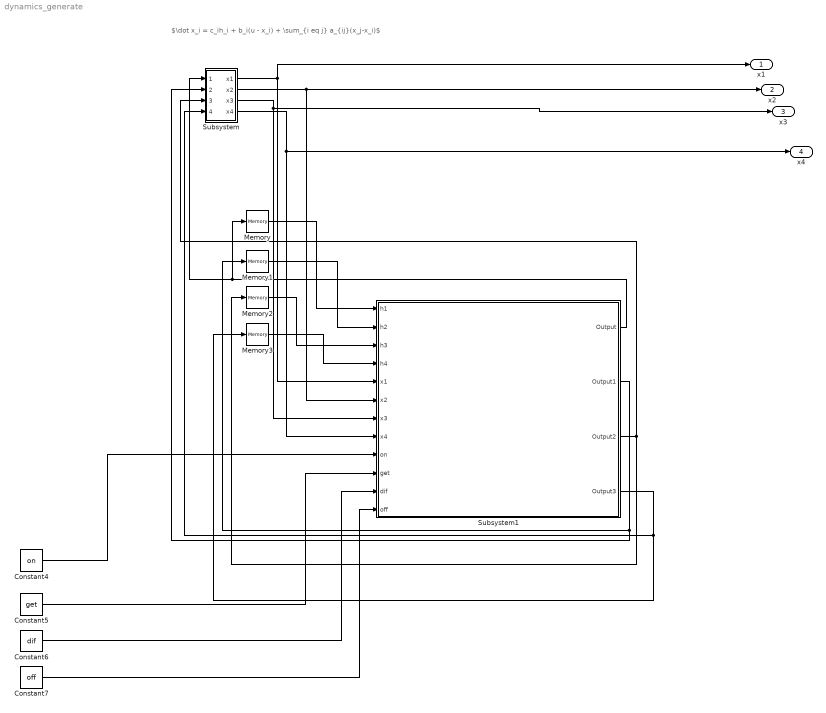
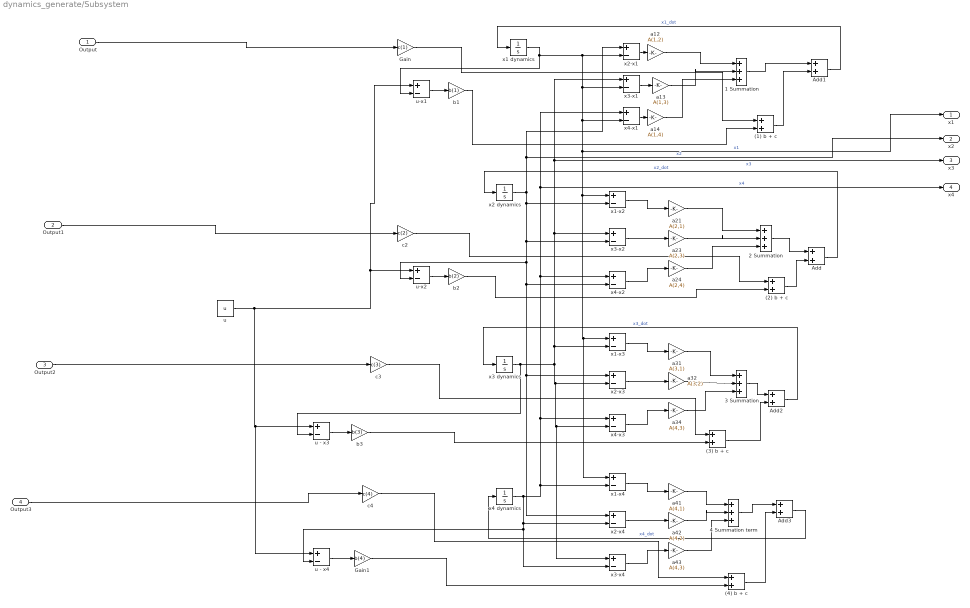
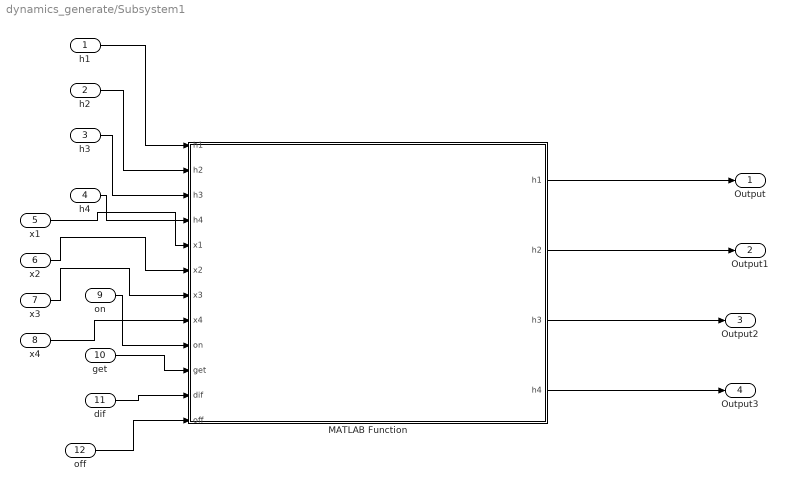
== matlab function dynamics_generate/Subsystem1/MATLAB Function ==
function [h1,h2,h3,h4] = SelectHeaters(h1,h2,h3,h4,x1,x2,x3,x4,on,get,dif,off)
x = [x1,x2,x3,x4];
h = [h1,h2,h3,h4];
persistent locations;
hnew = zeros(1,4);
if isempty(locations)
    locations = h;
end
ind = find(locations == 1);

biggestdiff = 0;
newind = ind;

for i = 1:1:4
    if x(i) <= get(i) && x(ind(1)) - x(i) >= dif(i)
        curdiff = on(i)-x(i);
        if curdiff > biggestdiff
            biggestdiff = curdiff;
            newind(1) = i;
        end
    end
end

locations(newind(1)) = 1;
if x(newind(1)) <= on(newind(1)) && x(newind(1)) < off(newind(1))
    hnew(newind(1)) = 1;
end

biggestdiff = 0;

for i = 1:1:4
    if x(i) <= get(i) && x(ind(1)) - x(i) >= dif(i) && i ~= newind(1)
        curdiff = on(i)-x(i);
        if curdiff > biggestdiff
            biggestdiff = curdiff;
            newind(2) = i;
        end
    end
end

locations(newind(2)) = 1;
if x(newind(2)) <= on(newind(2)) && x(newind(2)) < off(newind(2))
    hnew(newind(2)) = 1;
end

h1 = hnew(1);
h2 = hnew(2);
h3 = hnew(3);
h4 = hnew(4);

/*
 * dynamics_generate.c
 *
 * Academic License - for use in teaching, academic research, and meeting
 * course requirements at degree granting institutions only.  Not for
 * government, commercial, or other organizational use.
 *
 * Code generation for model "dynamics_generate".
 *
 * Model version              : 1.8
 * Simulink Coder version : 9.7 (R2022a) 13-Nov-2021
 * C source code generated on : Sat Dec 10 17:25:09 2022
 *
 * Target selection: grt.tlc
 * Note: GRT includes extra infrastructure and instrumentation for prototyping
 * Embedded hardware selection: Intel->x86-64 (Windows64)
 * Code generation objectives: Unspecified
 * Validation result: Not run
 */

#include "dynamics_generate.h"
#include <string.h>
#include <stdio.h>
#include "rtwtypes.h"
#include "dynamics_generate_private.h"
#include "rt_nonfinite.h"
#include <stdlib.h>
#include <errno.h>

#define MAX_DIGITS 12

/* Block signals (default storage) */
B_dynamics_generate_T dynamics_generate_B;

/* Continuous states */
X_dynamics_generate_T dynamics_generate_X;

/* Block states (default storage) */
DW_dynamics_generate_T dynamics_generate_DW;

/* External outputs (root outports fed by signals with default storage) */
ExtY_dynamics_generate_T dynamics_generate_Y;

/* Real-time model */
static RT_MODEL_dynamics_generate_T dynamics_generate_M_;
RT_MODEL_dynamics_generate_T *const dynamics_generate_M = &dynamics_generate_M_;

//function definitions
int get_u_input(char* uval);
int get_h_input(char* hval);
void getIntegerFromStdin(int *inputInteger);

/*
 * This function updates continuous states using the ODE3 fixed-step
 * solver algorithm
 */
static void rt_ertODEUpdateContinuousStates(RTWSolverInfo *si )
{
  /* Solver Matrices */
  static const real_T rt_ODE3_A[3] = {
    1.0/2.0, 3.0/4.0, 1.0
  };

  static const real_T rt_ODE3_B[3][3] = {
    { 1.0/2.0, 0.0, 0.0 },

    { 0.0, 3.0/4.0, 0.0 },

    { 2.0/9.0, 1.0/3.0, 4.0/9.0 }
  };

  time_T t = rtsiGetT(si);
  time_T tnew = rtsiGetSolverStopTime(si);
  time_T h = rtsiGetStepSize(si);
  real_T *x = rtsiGetContStates(si);
  ODE3_IntgData *id = (ODE3_IntgData *)rtsiGetSolverData(si);
  real_T *y = id->y;
  real_T *f0 = id->f[0];
  real_T *f1 = id->f[1];
  real_T *f2 = id->f[2];
  real_T hB[3];
  int_T i;
  int_T nXc = 4;
  rtsiSetSimTimeStep(si,MINOR_TIME_STEP);

  /* Save the state values at time t in y, we'll use x as ynew. */
  (void) memcpy(y, x,
                (uint_T)nXc*sizeof(real_T));

  /* Assumes that rtsiSetT and ModelOutputs are up-to-date */
  /* f0 = f(t,y) */
  rtsiSetdX(si, f0);
  dynamics_generate_derivatives();

  /* f(:,2) = feval(odefile, t + hA(1), y + f*hB(:,1), args(:)(*)); */
  hB[0] = h * rt_ODE3_B[0][0];
  for (i = 0; i < nXc; i++) {
    x[i] = y[i] + (f0[i]*hB[0]);
  }

  rtsiSetT(si, t + h*rt_ODE3_A[0]);
  rtsiSetdX(si, f1);
  dynamics_generate_step();
  dynamics_generate_derivatives();

  /* f(:,3) = feval(odefile, t + hA(2), y + f*hB(:,2), args(:)(*)); */
  for (i = 0; i <= 1; i++) {
    hB[i] = h * rt_ODE3_B[1][i];
  }

  for (i = 0; i < nXc; i++) {
    x[i] = y[i] + (f0[i]*hB[0] + f1[i]*hB[1]);
  }

  rtsiSetT(si, t + h*rt_ODE3_A[1]);
  rtsiSetdX(si, f2);
  dynamics_generate_step();
  dynamics_generate_derivatives();

  /* tnew = t + hA(3);
     ynew = y + f*hB(:,3); */
  for (i = 0; i <= 2; i++) {
    hB[i] = h * rt_ODE3_B[2][i];
  }

  for (i = 0; i < nXc; i++) {
    x[i] = y[i] + (f0[i]*hB[0] + f1[i]*hB[1] + f2[i]*hB[2]);
  }

  rtsiSetT(si, tnew);
  rtsiSetSimTimeStep(si,MAJOR_TIME_STEP);
}

/* Model step function */
void dynamics_generate_step(void)
{
  real_T x[4];
  int8_T hnew[4];
  int8_T ii_data[4];
  int8_T newind_data[4];

  //static variable for the counter timestep
  static int count = 0;
  count++;

  if (rtmIsMajorTimeStep(dynamics_generate_M)) {
    /* set solver stop time */
    if (!(dynamics_generate_M->Timing.clockTick0+1)) {
      rtsiSetSolverStopTime(&dynamics_generate_M->solverInfo,
                            ((dynamics_generate_M->Timing.clockTickH0 + 1) *
        dynamics_generate_M->Timing.stepSize0 * 4294967296.0));
    } else {
      rtsiSetSolverStopTime(&dynamics_generate_M->solverInfo,
                            ((dynamics_generate_M->Timing.clockTick0 + 1) *
        dynamics_generate_M->Timing.stepSize0 +
        dynamics_generate_M->Timing.clockTickH0 *
        dynamics_generate_M->Timing.stepSize0 * 4294967296.0));
    }
  }                                    /* end MajorTimeStep */

  /* Update absolute time of base rate at minor time step */
  if (rtmIsMinorTimeStep(dynamics_generate_M)) {
    dynamics_generate_M->Timing.t[0] = rtsiGetT(&dynamics_generate_M->solverInfo);
  }

        //outputs are below (not all are outputs, just the ones that say Outport)
          //print them out here

  /* Integrator: '<S1>/x1 dynamics' */
  dynamics_generate_B.x1 = dynamics_generate_X.x1dynamics_CSTATE;

  /* Outport: '<Root>/x1' */
  dynamics_generate_Y.x1 = dynamics_generate_B.x1;

  /* Integrator: '<S1>/x2 dynamics' */
  dynamics_generate_B.x2 = dynamics_generate_X.x2dynamics_CSTATE;

  /* Outport: '<Root>/x2' */
  dynamics_generate_Y.x2 = dynamics_generate_B.x2;

  /* Integrator: '<S1>/x3 dynamics' */
  dynamics_generate_B.x3 = dynamics_generate_X.x3dynamics_CSTATE;

  /* Outport: '<Root>/x3' */
  dynamics_generate_Y.x3 = dynamics_generate_B.x3;

  /* Integrator: '<S1>/x4 dynamics' */
  dynamics_generate_B.x4 = dynamics_generate_X.x4dynamics_CSTATE;

  /* Outport: '<Root>/x4' */
  dynamics_generate_Y.x4 = dynamics_generate_B.x4;

  //**************
  //print outputs here
  //**************

  printf("**********TIMESTEP %d********\n", count);
  //std::cout << "**********TIMESTEP**********" << std::endl;
  printf("Room 1 Temp: %f\n", dynamics_generate_Y.x1);
  //std::cout << "Room 1 Temp: " << dynamics_generate_Y.x1 << std::endl;
  printf("Room 2 Temp: %f\n", dynamics_generate_Y.x2);
  //std::cout << "Room 2 Temp: " << dynamics_generate_Y.x2 << std::endl;
  printf("Room 3 Temp: %f\n", dynamics_generate_Y.x3);
  //std::cout << "Room 3 Temp: " << dynamics_generate_Y.x3 << std::endl;
  printf("Room 4 Temp: %f\n", dynamics_generate_Y.x4);
  //std::cout << "Room 4 Temp: " << dynamics_generate_Y.x4 << std::endl;
  printf("****************************\n");
  //printf("uval: %f\n", dynamics_generate_P.u);
  //std::cout << "****************************" << std::endl;

  //end print outputs

  if (rtmIsMajorTimeStep(dynamics_generate_M)) {
    real_T biggestdiff;
    real_T curdiff;
    int32_T b_ii;
    int32_T idx;
    boolean_T exitg1;

    /* Memory: '<Root>/Memory' */
    dynamics_generate_B.h1 = dynamics_generate_DW.Memory_PreviousInput;

    /* Memory: '<Root>/Memory1' */
    dynamics_generate_B.h2 = dynamics_generate_DW.Memory1_PreviousInput;

    /* Memory: '<Root>/Memory2' */
    dynamics_generate_B.h3 = dynamics_generate_DW.Memory2_PreviousInput;

    /* Memory: '<Root>/Memory3' */
    dynamics_generate_B.h4 = dynamics_generate_DW.Memory3_PreviousInput;

    /* MATLAB Function: '<S2>/MATLAB Function' incorporates:
     *  Constant: '<Root>/Constant4'
     *  Constant: '<Root>/Constant5'
     *  Constant: '<Root>/Constant6'
     *  Constant: '<Root>/Constant7'
     */
    x[0] = dynamics_generate_B.x1;
    x[1] = dynamics_generate_B.x2;
    x[2] = dynamics_generate_B.x3;
    x[3] = dynamics_generate_B.x4;
    hnew[0] = 0;
    hnew[1] = 0;
    hnew[2] = 0;
    hnew[3] = 0;
    if (!dynamics_generate_DW.locations_not_empty) {      //set h in dynamics_generate_B from input
      dynamics_generate_DW.locations[0] = dynamics_generate_B.h1;
      dynamics_generate_DW.locations[1] = dynamics_generate_B.h2;
      dynamics_generate_DW.locations[2] = dynamics_generate_B.h3;
      dynamics_generate_DW.locations[3] = dynamics_generate_B.h4;
      dynamics_generate_DW.locations_not_empty = true;
    }

    idx = 0;
    b_ii = 0;
    exitg1 = false;
    while ((!exitg1) && (b_ii < 4)) {
      if (dynamics_generate_DW.locations[b_ii] == 1.0) {
        idx++;
        ii_data[idx - 1] = (int8_T)(b_ii + 1);
        if (idx >= 4) {
          exitg1 = true;
        } else {
          b_ii++;
        }
      } else {
        b_ii++;
      }
    }

    if (idx < 1) {
      idx = 0;
    }

    biggestdiff = 0.0;
    idx--;
    if (idx >= 0) {
      memcpy(&newind_data[0], &ii_data[0], (idx + 1) * sizeof(int8_T));
    }

    if ((dynamics_generate_B.x1 <= dynamics_generate_P.get[0]) && (x[ii_data[0]
         - 1] - dynamics_generate_B.x1 >= dynamics_generate_P.dif[0])) {
      curdiff = dynamics_generate_P.on[0] - dynamics_generate_B.x1;
      if (curdiff > 0.0) {
        biggestdiff = curdiff;
        newind_data[0] = 1;
      }
    }

    if ((dynamics_generate_B.x2 <= dynamics_generate_P.get[1]) && (x[ii_data[0]
         - 1] - dynamics_generate_B.x2 >= dynamics_generate_P.dif[1])) {
      curdiff = dynamics_generate_P.on[1] - dynamics_generate_B.x2;
      if (curdiff > biggestdiff) {
        biggestdiff = curdiff;
        newind_data[0] = 2;
      }
    }

    if ((dynamics_generate_B.x3 <= dynamics_generate_P.get[2]) && (x[ii_data[0]
         - 1] - dynamics_generate_B.x3 >= dynamics_generate_P.dif[2])) {
      curdiff = dynamics_generate_P.on[2] - dynamics_generate_B.x3;
      if (curdiff > biggestdiff) {
        biggestdiff = curdiff;
        newind_data[0] = 3;
      }
    }

    if ((dynamics_generate_B.x4 <= dynamics_generate_P.get[3]) && (x[ii_data[0]
         - 1] - dynamics_generate_B.x4 >= dynamics_generate_P.dif[3]) &&
        (dynamics_generate_P.on[3] - dynamics_generate_B.x4 > biggestdiff)) {
      newind_data[0] = 4;
    }

    b_ii = newind_data[0];
    dynamics_generate_DW.locations[b_ii - 1] = 1.0;
    biggestdiff = x[b_ii - 1];
    if ((biggestdiff <= dynamics_generate_P.on[b_ii - 1]) && (biggestdiff <
         dynamics_generate_P.off[b_ii - 1])) {
      hnew[b_ii - 1] = 1;
    }

    biggestdiff = 0.0;
    if ((dynamics_generate_B.x1 <= dynamics_generate_P.get[0]) && (x[ii_data[0]
         - 1] - dynamics_generate_B.x1 >= dynamics_generate_P.dif[0]) && (b_ii
         != 1)) {
      curdiff = dynamics_generate_P.on[0] - dynamics_generate_B.x1;
      if (curdiff > 0.0) {
        biggestdiff = curdiff;
        newind_data[1] = 1;
      }
    }

    if ((dynamics_generate_B.x2 <= dynamics_generate_P.get[1]) && (x[ii_data[0]
         - 1] - dynamics_generate_B.x2 >= dynamics_generate_P.dif[1]) &&
        (newind_data[0] != 2)) {
      curdiff = dynamics_generate_P.on[1] - dynamics_generate_B.x2;
      if (curdiff > biggestdiff) {
        biggestdiff = curdiff;
        newind_data[1] = 2;
      }
    }

    if ((dynamics_generate_B.x3 <= dynamics_generate_P.get[2]) && (x[ii_data[0]
         - 1] - dynamics_generate_B.x3 >= dynamics_generate_P.dif[2]) &&
        (newind_data[0] != 3)) {
      curdiff = dynamics_generate_P.on[2] - dynamics_generate_B.x3;
      if (curdiff > biggestdiff) {
        biggestdiff = curdiff;
        newind_data[1] = 3;
      }
    }

    if ((dynamics_generate_B.x4 <= dynamics_generate_P.get[3]) && (x[ii_data[0]
         - 1] - dynamics_generate_B.x4 >= dynamics_generate_P.dif[3]) &&
        (newind_data[0] != 4) && (dynamics_generate_P.on[3] -
         dynamics_generate_B.x4 > biggestdiff)) {
      newind_data[1] = 4;
    }

    idx = newind_data[1] - 1;
    dynamics_generate_DW.locations[idx] = 1.0;
    biggestdiff = x[idx];
    if ((biggestdiff <= dynamics_generate_P.on[idx]) && (biggestdiff <
         dynamics_generate_P.off[idx])) {
      hnew[idx] = 1;
    }

    dynamics_generate_B.h1 = hnew[0];
    dynamics_generate_B.h2 = hnew[1];
    dynamics_generate_B.h3 = hnew[2];
    dynamics_generate_B.h4 = hnew[3];

    /* End of MATLAB Function: '<S2>/MATLAB Function' */

    /* Gain: '<S1>/Gain' */
    dynamics_generate_B.Gain = dynamics_generate_P.c[0] * dynamics_generate_B.h1;

    /* Gain: '<S1>/c2' */
    dynamics_generate_B.c2 = dynamics_generate_P.c[1] * dynamics_generate_B.h2;

    /* Gain: '<S1>/c3' */
    dynamics_generate_B.c3 = dynamics_generate_P.c[2] * dynamics_generate_B.h3;

    /* Gain: '<S1>/c4' */
    dynamics_generate_B.c4 = dynamics_generate_P.c[3] * dynamics_generate_B.h4;
  }

  /* Sum: '<S1>/Add' incorporates:
   *  Constant: '<S1>/u'
   *  Gain: '<S1>/a21'
   *  Gain: '<S1>/a23'
   *  Gain: '<S1>/a24'
   *  Gain: '<S1>/b2'
   *  Sum: '<S1>/(2) b + c'
   *  Sum: '<S1>/2 Summation'
   *  Sum: '<S1>/u-x2'
   *  Sum: '<S1>/x1-x2'
   *  Sum: '<S1>/x3-x2'
   *  Sum: '<S1>/x4-x2'
   */
  dynamics_generate_B.x2_dot = (((dynamics_generate_B.x1 -
    dynamics_generate_B.x2) * dynamics_generate_P.a21_Gain +
    (dynamics_generate_B.x3 - dynamics_generate_B.x2) *
    dynamics_generate_P.a23_Gain) + (dynamics_generate_B.x4 -
    dynamics_generate_B.x2) * dynamics_generate_P.a24_Gain) +
    ((dynamics_generate_P.u - dynamics_generate_B.x2) * dynamics_generate_P.b[1]
     + dynamics_generate_B.c2);

  /* Sum: '<S1>/Add1' incorporates:
   *  Constant: '<S1>/u'
   *  Gain: '<S1>/a12'
   *  Gain: '<S1>/a13'
   *  Gain: '<S1>/a14'
   *  Gain: '<S1>/b1'
   *  Sum: '<S1>/(1) b + c'
   *  Sum: '<S1>/1 Summation'
   *  Sum: '<S1>/u-x1'
   *  Sum: '<S1>/x2-x1'
   *  Sum: '<S1>/x3-x1'
   *  Sum: '<S1>/x4-x1'
   */
  dynamics_generate_B.x1_dot = (((dynamics_generate_B.x2 -
    dynamics_generate_B.x1) * dynamics_generate_P.a12_Gain +
    (dynamics_generate_B.x3 - dynamics_generate_B.x1) *
    dynamics_generate_P.a13_Gain) + (dynamics_generate_B.x4 -
    dynamics_generate_B.x1) * dynamics_generate_P.a14_Gain) +
    ((dynamics_generate_P.u - dynamics_generate_B.x1) * dynamics_generate_P.b[0]
     + dynamics_generate_B.Gain);

  /* Sum: '<S1>/Add2' incorporates:
   *  Constant: '<S1>/u'
   *  Gain: '<S1>/a31'
   *  Gain: '<S1>/a32'
   *  Gain: '<S1>/a34'
   *  Gain: '<S1>/b3'
   *  Sum: '<S1>/(3) b + c'
   *  Sum: '<S1>/3 Summation'
   *  Sum: '<S1>/u - x3'
   *  Sum: '<S1>/x1-x3'
   *  Sum: '<S1>/x2-x3'
   *  Sum: '<S1>/x4-x3'
   */
  dynamics_generate_B.x3_dot = (((dynamics_generate_B.x1 -
    dynamics_generate_B.x3) * dynamics_generate_P.a31_Gain +
    (dynamics_generate_B.x2 - dynamics_generate_B.x3) *
    dynamics_generate_P.a32_Gain) + (dynamics_generate_B.x4 -
    dynamics_generate_B.x3) * dynamics_generate_P.a34_Gain) +
    ((dynamics_generate_P.u - dynamics_generate_B.x3) * dynamics_generate_P.b[2]
     + dynamics_generate_B.c3);

  /* Sum: '<S1>/Add3' incorporates:
   *  Constant: '<S1>/u'
   *  Gain: '<S1>/Gain1'
   *  Gain: '<S1>/a41'
   *  Gain: '<S1>/a42'
   *  Gain: '<S1>/a43'
   *  Sum: '<S1>/(4) b + c'
   *  Sum: '<S1>/4 Summation term'
   *  Sum: '<S1>/u - x4'
   *  Sum: '<S1>/x1-x4'
   *  Sum: '<S1>/x2-x4'
   *  Sum: '<S1>/x3-x4'
   */
  dynamics_generate_B.x4_dot = (((dynamics_generate_B.x1 -
    dynamics_generate_B.x4) * dynamics_generate_P.a41_Gain +
    (dynamics_generate_B.x2 - dynamics_generate_B.x4) *
    dynamics_generate_P.a42_Gain) + (dynamics_generate_B.x3 -
    dynamics_generate_B.x4) * dynamics_generate_P.a43_Gain) +
    ((dynamics_generate_P.u - dynamics_generate_B.x4) * dynamics_generate_P.b[3]
     + dynamics_generate_B.c4);
  if (rtmIsMajorTimeStep(dynamics_generate_M)) {
    /* Matfile logging */
    rt_UpdateTXYLogVars(dynamics_generate_M->rtwLogInfo,
                        (dynamics_generate_M->Timing.t));
  }                                    /* end MajorTimeStep */

  if (rtmIsMajorTimeStep(dynamics_generate_M)) {
    if (rtmIsMajorTimeStep(dynamics_generate_M)) {
      /* Update for Memory: '<Root>/Memory' */
      dynamics_generate_DW.Memory_PreviousInput = dynamics_generate_B.h1;

      /* Update for Memory: '<Root>/Memory1' */
      dynamics_generate_DW.Memory1_PreviousInput = dynamics_generate_B.h2;

      /* Update for Memory: '<Root>/Memory2' */
      dynamics_generate_DW.Memory2_PreviousInput = dynamics_generate_B.h3;

      /* Update for Memory: '<Root>/Memory3' */
      dynamics_generate_DW.Memory3_PreviousInput = dynamics_generate_B.h4;
    }
  }                                    /* end MajorTimeStep */

  if (rtmIsMajorTimeStep(dynamics_generate_M)) {
    /* signal main to stop simulation */
    {                                  /* Sample time: [0.0s, 0.0s] */
      if ((rtmGetTFinal(dynamics_generate_M)!=-1) &&
          !((rtmGetTFinal(dynamics_generate_M)-
             (((dynamics_generate_M->Timing.clockTick1+
                dynamics_generate_M->Timing.clockTickH1* 4294967296.0)) * 0.1)) >
            (((dynamics_generate_M->Timing.clockTick1+
               dynamics_generate_M->Timing.clockTickH1* 4294967296.0)) * 0.1) *
            (DBL_EPSILON))) {
        rtmSetErrorStatus(dynamics_generate_M, "Simulation finished");
      }
    }

    rt_ertODEUpdateContinuousStates(&dynamics_generate_M->solverInfo);

    /* Update absolute time for base rate */
    /* The "clockTick0" counts the number of times the code of this task has
     * been executed. The absolute time is the multiplication of "clockTick0"
     * and "Timing.stepSize0". Size of "clockTick0" ensures timer will not
     * overflow during the application lifespan selected.
     * Timer of this task consists of two 32 bit unsigned integers.
     * The two integers represent the low bits Timing.clockTick0 and the high bits
     * Timing.clockTickH0. When the low bit overflows to 0, the high bits increment.
     */
    if (!(++dynamics_generate_M->Timing.clockTick0)) {
      ++dynamics_generate_M->Timing.clockTickH0;
    }

    dynamics_generate_M->Timing.t[0] = rtsiGetSolverStopTime
      (&dynamics_generate_M->solverInfo);

    {
      /* Update absolute timer for sample time: [0.1s, 0.0s] */
      /* The "clockTick1" counts the number of times the code of this task has
       * been executed. The resolution of this integer timer is 0.1, which is the step size
       * of the task. Size of "clockTick1" ensures timer will not overflow during the
       * application lifespan selected.
       * Timer of this task consists of two 32 bit unsigned integers.
       * The two integers represent the low bits Timing.clockTick1 and the high bits
       * Timing.clockTickH1. When the low bit overflows to 0, the high bits increment.
       */
      dynamics_generate_M->Timing.clockTick1++;
      if (!dynamics_generate_M->Timing.clockTick1) {
        dynamics_generate_M->Timing.clockTickH1++;
      }
    }
  }                                    /* end MajorTimeStep */
}
